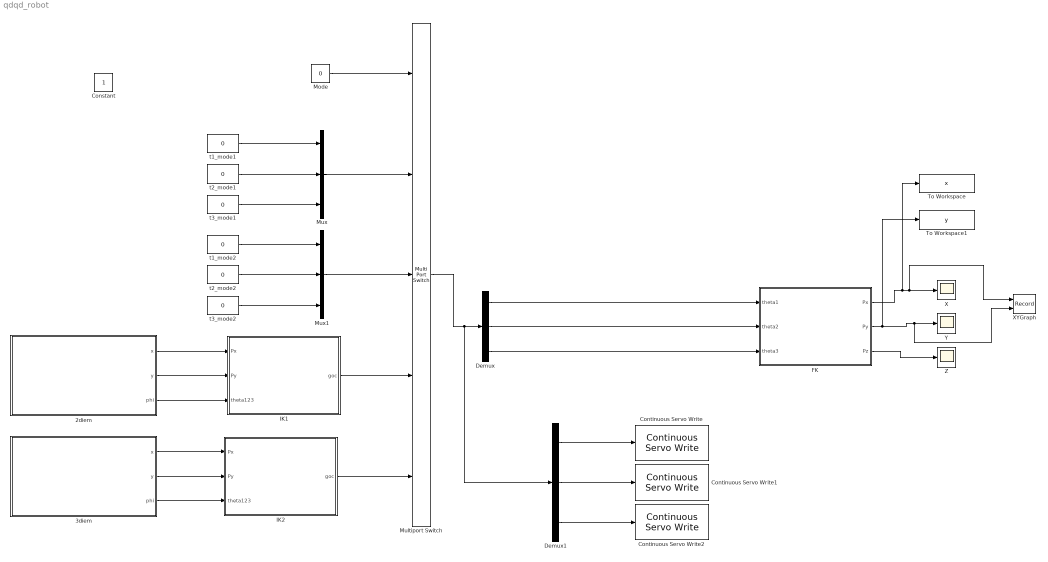
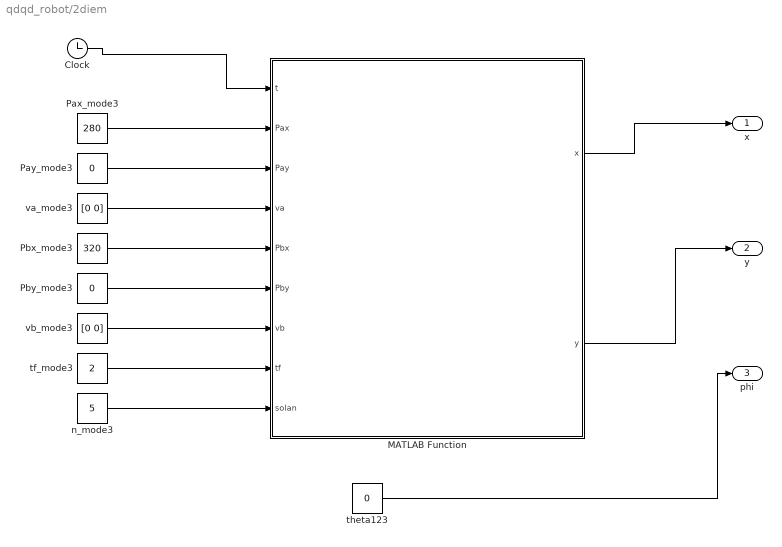
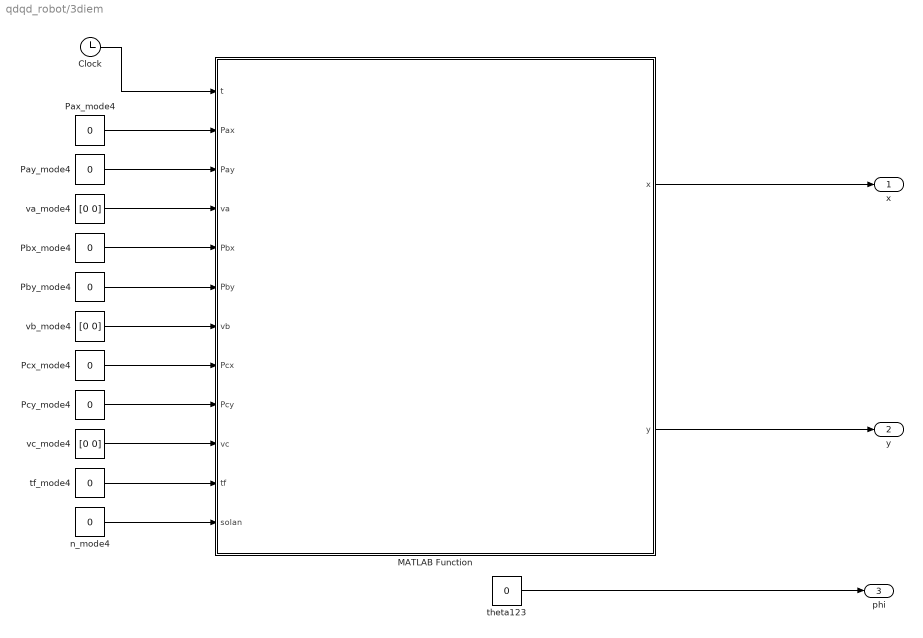
== matlab function qdqd_robot/IK1 ==
function goc  = DHNghich(Px, Py, theta123)
     l0 = 80;
     l1 = 99.98;
     l2 = 95.14;
     l3 = 80;
     d1 = 122.4;
     d2 = 22.4;
     d3 = 18.85;

     % Tinh theta1 
     A = Px - l0 - l3*cosd(theta123);
     B = Py - l3*sind(theta123);
     a = 2*A*l1;
     b = 2*B*l1;
     d = A^2 + B^2 + l1^2 - l2^2;
     anpha = atan2d(a/sqrt(a^2+b^2), b/sqrt(a^2+b^2));
     s1 = d/sqrt(a^2+b^2);
     if(abs(s1 - 1) <= 0.0001)
            if(s1 > 0)
                 s1 = 1;
            else s1 = -1;
            end
     end
     c1 = sqrt(1 - s1^2);
     theta1 = atan2d(s1, c1) - anpha;
     % Tinh theta2
     s2 = (Py - l3*sind(theta123) - l1*sind(theta1)) / l2;
     c2 = (Px - l0 - l1*cosd(theta1) - l3*cosd(theta123))/l2;
     theta2 = atan2d(s2,c2) - theta1;
     % Tinh theta3
    theta3 = theta123 - theta1 - theta2;
    goc = [theta1; theta2; theta3];
end

== matlab function qdqd_robot/2diem/MATLAB Function ==
function [x, y] = QHQD2D(t, Pax, Pay, va, Pbx, Pby, vb, tf, solan)

    function [x, y] = TrajectoryPlanning(t, P0, v0, Pf, vf, tf, t0)
        a10 = P0(1);
        a20 = P0(2);
        a11 = v0(1);
        a21 = v0(2);  
    
        a12 = 3 / tf^2 * (Pf(1) - P0(1)) - 2 / tf * v0(1) - 1 / tf * vf(1);
        a22 = 3 / tf^2 * (Pf(2) - P0(2)) - 2 / tf * v0(2) - 1 / tf * vf(2);
        a13 = -2 / tf^3 * (Pf(1) - P0(1)) + 1 / tf^2 * (vf(1) + v0(1));
        a23 = -2 / tf^3 * (Pf(2) - P0(2)) + 1 / tf^2 * (vf(2) + v0(2));
    
        x = a10 + a11 *(t - t0) + a12 * (t - t0)^2 + a13*(t - t0)^3;
        y = a20 + a21 *(t - t0) + a22 * (t - t0)^2 + a23*(t - t0)^3;
    end

    chuky = tf*2;
    i = fix(t/chuky);
    Pa = [Pax Pay];
    Pb = [Pbx Pby];
    if(t <= (tf + chuky*i))
        [x, y] = TrajectoryPlanning(t, Pa, va, Pb, vb, tf, 0 + chuky * i);
    else
        [x, y] = TrajectoryPlanning(t, Pa, va, Pb, vb, tf, tf + chuky * i);
    end
    if(t > chuky*solan)
         x = Pax;
         y = Pay;
    end
end

== matlab function qdqd_robot/3diem/MATLAB Function ==
function [x, y] = QHQD3D(t, Pax, Pay, va, Pbx, Pby, vb, Pcx, Pcy, vc, tf, solan) 
    function [x, y, z] = TrajectoryPlanning(t, P0, v0, Pf, vf, tf, t0)
        a10 = P0(1);
        a20 = P0(2);
        a11 = v0(1);
        a21 = v0(2);  
    
        a12 = 3 / tf^2 * (Pf(1) - P0(1)) - 2 / tf * v0(1) - 1 / tf * vf(1);
        a22 = 3 / tf^2 * (Pf(2) - P0(2)) - 2 / tf * v0(2) - 1 / tf * vf(2);
        a13 = -2 / tf^3 * (Pf(1) - P0(1)) + 1 / tf^2 * (vf(1) + v0(1));
        a23 = -2 / tf^3 * (Pf(2) - P0(2)) + 1 / tf^2 * (vf(2) + v0(2));
    
        x = a10 + a11 *(t - t0) + a12 * (t - t0)^2 + a13*(t - t0)^3;
        y = a20 + a21 *(t - t0) + a22 * (t - t0)^2 + a23*(t - t0)^3;
        z = 0;
    end
    chuky = tf*3;
    i = fix(t/chuky);
    Pa = [Pax Pay];
    Pb = [Pbx Pby];
    Pc = [Pcx Pcy];
    if(t <= (tf + chuky*i))
        [x, y] = TrajectoryPlanning(t, Pa, va, Pb, vb, tf, tf*0 + chuky * i);
    elseif(t <= (tf*2 + chuky*i))
        [x, y] = TrajectoryPlanning(t, Pb, vb, Pc, vc, tf, tf*1 + chuky * i);
    else
        [x, y] = TrajectoryPlanning(t, Pc, vc, Pa, va, tf, tf*2 + chuky * i);
    end
    if(t > chuky*solan)
         x = Pax;
         y = Pay;
    end
end

== matlab function qdqd_robot/IK2 ==
function goc  = DHNghich(Px, Py, theta123)
    l0 = 80;
     l1 = 99.98;
     l2 = 95.14;
     l3 = 80;
     d1 = 122.4;
     d2 = 22.4;
     d3 = 18.85;

     % Tinh theta1 
     A = Px - l0 - l3*cosd(theta123);
     B = Py - l3*sind(theta123);
     a = 2*A*l1;
     b = 2*B*l1;
     d = A^2 + B^2 + l1^2 - l2^2;
     anpha = atan2d(a/sqrt(a^2+b^2), b/sqrt(a^2+b^2));
     s1 = d/sqrt(a^2+b^2);
     if(abs(s1 - 1) <= 0.0001)
            if(s1 > 0)
                 s1 = 1;
            else s1 = -1;
            end
     end
     c1 = sqrt(1 - s1^2);
     theta1 = atan2d(s1, -c1) - anpha;
     % Tinh theta2
     s2 = (Py - l3*sind(theta123) - l1*sind(theta1)) / l2;
     c2 = (Px - l0 - l1*cosd(theta1) - l3*cosd(theta123))/l2;
     theta2 = atan2d(s2,c2) - theta1;
     % Tinh theta3
    theta3 = theta123 - theta1 - theta2;
    goc = [theta1; theta2; theta3];
end

== matlab function qdqd_robot/FK ==
function [Px, Py, Pz] = DHThuan(theta1, theta2, theta3)
    l1 = 100;
    l2 = 250;
    l3 = 250;
    l4 = 150;
    d1 = 30;
    d2 = 30;
    d3 = 30;
    l0 = 150;

    theta123= 0;

    Px = l1 + l2*cosd(theta1) + l3*cosd(theta1 + theta2) + l4*cosd(theta123);
    Py = l2*sind(theta1) + l3*sind(theta1 + theta2) + l4*sind(theta123);
    Pz = l0 + d1 + d2 + d3;
end

/*
 * File: qdqd_robot.c
 *
 * Code generated for Simulink model 'qdqd_robot'.
 *
 * Model version                  : 1.24
 * Simulink Coder version         : 9.8 (R2022b) 13-May-2022
 * C/C++ source code generated on : Thu Dec 28 00:20:59 2023
 *
 * Target selection: ert.tlc
 * Embedded hardware selection: Atmel->AVR
 * Code generation objectives: Unspecified
 * Validation result: Not run
 */

#include "qdqd_robot.h"
#include "rtwtypes.h"
#include <math.h>
#include "qdqd_robot_private.h"
#include "rt_nonfinite.h"
#include "rt_defines.h"
#include <float.h>

/* Block signals (default storage) */
B_qdqd_robot_T qdqd_robot_B;

/* Block states (default storage) */
DW_qdqd_robot_T qdqd_robot_DW;

/* Real-time model */
static RT_MODEL_qdqd_robot_T qdqd_robot_M_;
RT_MODEL_qdqd_robot_T *const qdqd_robot_M = &qdqd_robot_M_;

/* Forward declaration for local functions */
static void qdqd_robot_TrajectoryPlanning(real_T t, const real_T P0[2], const
  real_T v0[2], const real_T Pf[2], const real_T vf[2], real_T tf, real_T t0,
  real_T *x, real_T *y);
static void qdqd_robot_cosd(real_T *x);
static void qdqd_robot_sind(real_T *x);
real_T rt_powd_snf(real_T u0, real_T u1)
{
  real_T tmp;
  real_T tmp_0;
  real_T y;
  if (rtIsNaN(u0) || rtIsNaN(u1)) {
    y = (rtNaN);
  } else {
    tmp = fabs(u0);
    tmp_0 = fabs(u1);
    if (rtIsInf(u1)) {
      if (tmp == 1.0) {
        y = 1.0;
      } else if (tmp > 1.0) {
        if (u1 > 0.0) {
          y = (rtInf);
        } else {
          y = 0.0;
        }
      } else if (u1 > 0.0) {
        y = 0.0;
      } else {
        y = (rtInf);
      }
    } else if (tmp_0 == 0.0) {
      y = 1.0;
    } else if (tmp_0 == 1.0) {
      if (u1 > 0.0) {
        y = u0;
      } else {
        y = 1.0 / u0;
      }
    } else if (u1 == 2.0) {
      y = u0 * u0;
    } else if ((u1 == 0.5) && (u0 >= 0.0)) {
      y = sqrt(u0);
    } else if ((u0 < 0.0) && (u1 > floor(u1))) {
      y = (rtNaN);
    } else {
      y = pow(u0, u1);
    }
  }

  return y;
}

/* Function for MATLAB Function: '<S1>/MATLAB Function' */
static void qdqd_robot_TrajectoryPlanning(real_T t, const real_T P0[2], const
  real_T v0[2], const real_T Pf[2], const real_T vf[2], real_T tf, real_T t0,
  real_T *x, real_T *y)
{
  real_T x_tmp;
  real_T x_tmp_0;
  real_T x_tmp_1;
  real_T x_tmp_2;
  real_T x_tmp_3;
  qdqd_robot_B.a_tmp = t - t0;
  qdqd_robot_B.x_tmp = rt_powd_snf(qdqd_robot_B.a_tmp, 3.0);
  x_tmp = tf * tf;
  x_tmp_0 = Pf[0] - P0[0];
  x_tmp_1 = 3.0 / x_tmp;
  x_tmp = 1.0 / x_tmp;
  x_tmp_2 = -2.0 / rt_powd_snf(tf, 3.0);
  x_tmp_3 = qdqd_robot_B.a_tmp * qdqd_robot_B.a_tmp;
  *x = (((x_tmp_1 * x_tmp_0 - 2.0 / tf * v0[0]) - 1.0 / tf * vf[0]) * x_tmp_3 +
        (qdqd_robot_B.a_tmp * v0[0] + P0[0])) + ((vf[0] + v0[0]) * x_tmp +
    x_tmp_2 * x_tmp_0) * qdqd_robot_B.x_tmp;
  x_tmp_0 = Pf[1] - P0[1];
  *y = (((x_tmp_1 * x_tmp_0 - 2.0 / tf * v0[1]) - 1.0 / tf * vf[1]) * x_tmp_3 +
        (qdqd_robot_B.a_tmp * v0[1] + P0[1])) + ((vf[1] + v0[1]) * x_tmp +
    x_tmp_2 * x_tmp_0) * qdqd_robot_B.x_tmp;
}

real_T rt_remd_snf(real_T u0, real_T u1)
{
  real_T q;
  real_T y;
  if (rtIsNaN(u0) || rtIsNaN(u1) || rtIsInf(u0)) {
    y = (rtNaN);
  } else if (rtIsInf(u1)) {
    y = u0;
  } else {
    if (u1 < 0.0) {
      q = ceil(u1);
    } else {
      q = floor(u1);
    }

    if ((u1 != 0.0) && (u1 != q)) {
      q = fabs(u0 / u1);
      if (!(fabs(q - floor(q + 0.5)) > DBL_EPSILON * q)) {
        y = 0.0 * u0;
      } else {
        y = fmod(u0, u1);
      }
    } else {
      y = fmod(u0, u1);
    }
  }

  return y;
}

/* Function for MATLAB Function: '<Root>/FK' */
static void qdqd_robot_cosd(real_T *x)
{
  real_T absx;
  real_T b_x;
  int8_T n;
  if (rtIsInf(*x) || rtIsNaN(*x)) {
    *x = (rtNaN);
  } else {
    b_x = rt_remd_snf(*x, 360.0);
    absx = fabs(b_x);
    if (absx > 180.0) {
      if (b_x > 0.0) {
        b_x -= 360.0;
      } else {
        b_x += 360.0;
      }

      absx = fabs(b_x);
    }

    if (absx <= 45.0) {
      b_x *= 0.017453292519943295;
      n = 0;
    } else if (absx <= 135.0) {
      if (b_x > 0.0) {
        b_x = (b_x - 90.0) * 0.017453292519943295;
        n = 1;
      } else {
        b_x = (b_x + 90.0) * 0.017453292519943295;
        n = -1;
      }
    } else if (b_x > 0.0) {
      b_x = (b_x - 180.0) * 0.017453292519943295;
      n = 2;
    } else {
      b_x = (b_x + 180.0) * 0.017453292519943295;
      n = -2;
    }

    switch (n) {
     case 0:
      *x = cos(b_x);
      break;

     case 1:
      *x = -sin(b_x);
      break;

     case -1:
      *x = sin(b_x);
      break;

     default:
      *x = -cos(b_x);
      break;
    }
  }
}

/* Function for MATLAB Function: '<Root>/FK' */
static void qdqd_robot_sind(real_T *x)
{
  real_T absx;
  real_T b_x;
  int8_T n;
  if (rtIsInf(*x) || rtIsNaN(*x)) {
    *x = (rtNaN);
  } else {
    b_x = rt_remd_snf(*x, 360.0);
    absx = fabs(b_x);
    if (absx > 180.0) {
      if (b_x > 0.0) {
        b_x -= 360.0;
      } else {
        b_x += 360.0;
      }

      absx = fabs(b_x);
    }

    if (absx <= 45.0) {
      b_x *= 0.017453292519943295;
      n = 0;
    } else if (absx <= 135.0) {
      if (b_x > 0.0) {
        b_x = (b_x - 90.0) * 0.017453292519943295;
        n = 1;
      } else {
        b_x = (b_x + 90.0) * 0.017453292519943295;
        n = -1;
      }
    } else if (b_x > 0.0) {
      b_x = (b_x - 180.0) * 0.017453292519943295;
      n = 2;
    } else {
      b_x = (b_x + 180.0) * 0.017453292519943295;
      n = -2;
    }

    switch (n) {
     case 0:
      *x = sin(b_x);
      break;

     case 1:
      *x = cos(b_x);
      break;

     case -1:
      *x = -cos(b_x);
      break;

     default:
      *x = -sin(b_x);
      break;
    }
  }
}

real_T rt_atan2d_snf(real_T u0, real_T u1)
{
  real_T y;
  int16_T tmp;
  int16_T tmp_0;
  if (rtIsNaN(u0) || rtIsNaN(u1)) {
    y = (rtNaN);
  } else if (rtIsInf(u0) && rtIsInf(u1)) {
    if (u0 > 0.0) {
      tmp = 1;
    } else {
      tmp = -1;
    }

    if (u1 > 0.0) {
      tmp_0 = 1;
    } else {
      tmp_0 = -1;
    }

    y = atan2(tmp, tmp_0);
  } else if (u1 == 0.0) {
    if (u0 > 0.0) {
      y = RT_PI / 2.0;
    } else if (u0 < 0.0) {
      y = -(RT_PI / 2.0);
    } else {
      y = 0.0;
    }
  } else {
    y = atan2(u0, u1);
  }

  return y;
}

real_T rt_roundd_snf(real_T u)
{
  real_T y;
  if (fabs(u) < 4.503599627370496E+15) {
    if (u >= 0.5) {
      y = floor(u + 0.5);
    } else if (u > -0.5) {
      y = u * 0.0;
    } else {
      y = ceil(u - 0.5);
    }
  } else {
    y = u;
  }

  return y;
}

/* Model step function */
void qdqd_robot_step(void)
{
  uint8_T tmp;

  /* Clock: '<S1>/Clock' incorporates:
   *  Clock: '<S2>/Clock'
   */
  qdqd_robot_B.theta1_m = qdqd_robot_M->Timing.t[0];

  /* MATLAB Function: '<S1>/MATLAB Function' incorporates:
   *  Clock: '<S1>/Clock'
   *  Constant: '<S1>/Pax_mode3'
   *  Constant: '<S1>/Pay_mode3'
   *  Constant: '<S1>/Pbx_mode3'
   *  Constant: '<S1>/Pby_mode3'
   *  Constant: '<S1>/n_mode3'
   *  Constant: '<S1>/tf_mode3'
   *  Constant: '<S1>/va_mode3'
   *  Constant: '<S1>/vb_mode3'
   */
  qdqd_robot_B.chuky = qdqd_robot_P.tf_mode3_Value * 2.0;
  qdqd_robot_B.y_l = qdqd_robot_B.theta1_m / qdqd_robot_B.chuky;
  if (qdqd_robot_B.y_l < 0.0) {
    qdqd_robot_B.i = ceil(qdqd_robot_B.y_l);
  } else {
    qdqd_robot_B.i = floor(qdqd_robot_B.y_l);
  }

  if (qdqd_robot_B.theta1_m <= qdqd_robot_B.chuky * qdqd_robot_B.i +
      qdqd_robot_P.tf_mode3_Value) {
    qdqd_robot_B.dv[0] = qdqd_robot_P.Pax_mode3_Value;
    qdqd_robot_B.dv[1] = qdqd_robot_P.Pay_mode3_Value;
    qdqd_robot_B.Pa[0] = qdqd_robot_P.Pbx_mode3_Value;
    qdqd_robot_B.Pa[1] = qdqd_robot_P.Pby_mode3_Value;
    qdqd_robot_TrajectoryPlanning(qdqd_robot_B.theta1_m, qdqd_robot_B.dv,
      qdqd_robot_P.va_mode3_Value, qdqd_robot_B.Pa, qdqd_robot_P.vb_mode3_Value,
      qdqd_robot_P.tf_mode3_Value, qdqd_robot_B.chuky * qdqd_robot_B.i,
      &qdqd_robot_B.x_e, &qdqd_robot_B.y_l);
  } else {
    qdqd_robot_B.dv[0] = qdqd_robot_P.Pax_mode3_Value;
    qdqd_robot_B.dv[1] = qdqd_robot_P.Pay_mode3_Value;
    qdqd_robot_B.Pa[0] = qdqd_robot_P.Pbx_mode3_Value;
    qdqd_robot_B.Pa[1] = qdqd_robot_P.Pby_mode3_Value;
    qdqd_robot_TrajectoryPlanning(qdqd_robot_B.theta1_m, qdqd_robot_B.dv,
      qdqd_robot_P.va_mode3_Value, qdqd_robot_B.Pa, qdqd_robot_P.vb_mode3_Value,
      qdqd_robot_P.tf_mode3_Value, qdqd_robot_P.tf_mode3_Value +
      qdqd_robot_B.chuky * qdqd_robot_B.i, &qdqd_robot_B.x_e, &qdqd_robot_B.y_l);
  }

  if (qdqd_robot_B.theta1_m > qdqd_robot_B.chuky * qdqd_robot_P.n_mode3_Value) {
    qdqd_robot_B.x_e = qdqd_robot_P.Pax_mode3_Value;
    qdqd_robot_B.y_l = qdqd_robot_P.Pay_mode3_Value;
  }

  /* End of MATLAB Function: '<S1>/MATLAB Function' */

  /* MATLAB Function: '<Root>/IK1' incorporates:
   *  Constant: '<S1>/theta123'
   */
  qdqd_robot_B.i = qdqd_robot_P.theta123_Value;
  qdqd_robot_cosd(&qdqd_robot_B.i);
  qdqd_robot_B.i = (qdqd_robot_B.x_e - 80.0) - 80.0 * qdqd_robot_B.i;
  qdqd_robot_B.a = qdqd_robot_P.theta123_Value;
  qdqd_robot_sind(&qdqd_robot_B.a);
  qdqd_robot_B.B = qdqd_robot_B.y_l - 80.0 * qdqd_robot_B.a;
  qdqd_robot_B.a = 2.0 * qdqd_robot_B.i * 99.98;
  qdqd_robot_B.chuky = 2.0 * qdqd_robot_B.B * 99.98;
  qdqd_robot_B.s1_tmp = sqrt(qdqd_robot_B.a * qdqd_robot_B.a +
    qdqd_robot_B.chuky * qdqd_robot_B.chuky);
  qdqd_robot_B.i = (((qdqd_robot_B.i * qdqd_robot_B.i + qdqd_robot_B.B *
                      qdqd_robot_B.B) + 9996.0004) - 9051.6196) /
    qdqd_robot_B.s1_tmp;
  if (fabs(qdqd_robot_B.i - 1.0) <= 0.0001) {
    if (qdqd_robot_B.i > 0.0) {
      qdqd_robot_B.i = 1.0;
    } else {
      qdqd_robot_B.i = -1.0;
    }
  }

  qdqd_robot_B.theta1 = rt_atan2d_snf(qdqd_robot_B.i, sqrt(1.0 - qdqd_robot_B.i *
    qdqd_robot_B.i)) * 57.295779513082323 - rt_atan2d_snf(qdqd_robot_B.a /
    qdqd_robot_B.s1_tmp, qdqd_robot_B.chuky / qdqd_robot_B.s1_tmp) *
    57.295779513082323;
  qdqd_robot_B.i = qdqd_robot_P.theta123_Value;
  qdqd_robot_sind(&qdqd_robot_B.i);
  qdqd_robot_B.a = qdqd_robot_B.theta1;
  qdqd_robot_sind(&qdqd_robot_B.a);
  qdqd_robot_B.chuky = qdqd_robot_B.theta1;
  qdqd_robot_cosd(&qdqd_robot_B.chuky);
  qdqd_robot_B.s1_tmp = qdqd_robot_P.theta123_Value;
  qdqd_robot_cosd(&qdqd_robot_B.s1_tmp);
  qdqd_robot_B.x_e = rt_atan2d_snf(((qdqd_robot_B.y_l - 80.0 * qdqd_robot_B.i) -
    99.98 * qdqd_robot_B.a) / 95.14, (((qdqd_robot_B.x_e - 80.0) - 99.98 *
    qdqd_robot_B.chuky) - 80.0 * qdqd_robot_B.s1_tmp) / 95.14) *
    57.295779513082323 - qdqd_robot_B.theta1;

  /* MATLAB Function: '<S2>/MATLAB Function' incorporates:
   *  Constant: '<S2>/Pax_mode4'
   *  Constant: '<S2>/Pay_mode4'
   *  Constant: '<S2>/Pbx_mode4'
   *  Constant: '<S2>/Pby_mode4'
   *  Constant: '<S2>/Pcx_mode4'
   *  Constant: '<S2>/Pcy_mode4'
   *  Constant: '<S2>/n_mode4'
   *  Constant: '<S2>/tf_mode4'
   *  Constant: '<S2>/va_mode4'
   *  Constant: '<S2>/vb_mode4'
   *  Constant: '<S2>/vc_mode4'
   */
  qdqd_robot_B.chuky = qdqd_robot_P.tf_mode4_Value * 3.0;
  qdqd_robot_B.y_l = qdqd_robot_B.theta1_m / qdqd_robot_B.chuky;
  if (qdqd_robot_B.y_l < 0.0) {
    qdqd_robot_B.i = ceil(qdqd_robot_B.y_l);
  } else {
    qdqd_robot_B.i = floor(qdqd_robot_B.y_l);
  }

  qdqd_robot_B.Pa[0] = qdqd_robot_P.Pax_mode4_Value;
  qdqd_robot_B.Pa[1] = qdqd_robot_P.Pay_mode4_Value;
  qdqd_robot_B.Pb[0] = qdqd_robot_P.Pbx_mode4_Value;
  qdqd_robot_B.Pb[1] = qdqd_robot_P.Pby_mode4_Value;
  qdqd_robot_B.y_l = qdqd_robot_B.chuky * qdqd_robot_B.i;
  if (qdqd_robot_B.theta1_m <= qdqd_robot_B.y_l + qdqd_robot_P.tf_mode4_Value) {
    qdqd_robot_TrajectoryPlanning(qdqd_robot_B.theta1_m, qdqd_robot_B.Pa,
      qdqd_robot_P.va_mode4_Value, qdqd_robot_B.Pb, qdqd_robot_P.vb_mode4_Value,
      qdqd_robot_P.tf_mode4_Value, qdqd_robot_P.tf_mode4_Value * 0.0 +
      qdqd_robot_B.chuky * qdqd_robot_B.i, &qdqd_robot_B.y_l, &qdqd_robot_B.y);
  } else if (qdqd_robot_B.theta1_m <= qdqd_robot_P.tf_mode4_Value * 2.0 +
             qdqd_robot_B.y_l) {
    qdqd_robot_B.dv[0] = qdqd_robot_P.Pcx_mode4_Value;
    qdqd_robot_B.dv[1] = qdqd_robot_P.Pcy_mode4_Value;
    qdqd_robot_TrajectoryPlanning(qdqd_robot_B.theta1_m, qdqd_robot_B.Pb,
      qdqd_robot_P.vb_mode4_Value, qdqd_robot_B.dv, qdqd_robot_P.vc_mode4_Value,
      qdqd_robot_P.tf_mode4_Value, qdqd_robot_P.tf_mode4_Value +
      qdqd_robot_B.chuky * qdqd_robot_B.i, &qdqd_robot_B.y_l, &qdqd_robot_B.y);
  } else {
    qdqd_robot_B.dv[0] = qdqd_robot_P.Pcx_mode4_Value;
    qdqd_robot_B.dv[1] = qdqd_robot_P.Pcy_mode4_Value;
    qdqd_robot_TrajectoryPlanning(qdqd_robot_B.theta1_m, qdqd_robot_B.dv,
      qdqd_robot_P.vc_mode4_Value, qdqd_robot_B.Pa, qdqd_robot_P.va_mode4_Value,
      qdqd_robot_P.tf_mode4_Value, qdqd_robot_P.tf_mode4_Value * 2.0 +
      qdqd_robot_B.chuky * qdqd_robot_B.i, &qdqd_robot_B.y_l, &qdqd_robot_B.y);
  }

  if (qdqd_robot_B.theta1_m > qdqd_robot_B.chuky * qdqd_robot_P.n_mode4_Value) {
    qdqd_robot_B.y_l = qdqd_robot_P.Pax_mode4_Value;
    qdqd_robot_B.y = qdqd_robot_P.Pay_mode4_Value;
  }

  /* End of MATLAB Function: '<S2>/MATLAB Function' */

  /* MATLAB Function: '<Root>/IK2' incorporates:
   *  Constant: '<S2>/theta123'
   */
  qdqd_robot_B.i = qdqd_robot_P.theta123_Value_j;
  qdqd_robot_cosd(&qdqd_robot_B.i);
  qdqd_robot_B.i = (qdqd_robot_B.y_l - 80.0) - 80.0 * qdqd_robot_B.i;
  qdqd_robot_B.a = qdqd_robot_P.theta123_Value_j;
  qdqd_robot_sind(&qdqd_robot_B.a);
  qdqd_robot_B.B = qdqd_robot_B.y - 80.0 * qdqd_robot_B.a;
  qdqd_robot_B.a = 2.0 * qdqd_robot_B.i * 99.98;
  qdqd_robot_B.chuky = 2.0 * qdqd_robot_B.B * 99.98;
  qdqd_robot_B.s1_tmp = sqrt(qdqd_robot_B.a * qdqd_robot_B.a +
    qdqd_robot_B.chuky * qdqd_robot_B.chuky);
  qdqd_robot_B.i = (((qdqd_robot_B.i * qdqd_robot_B.i + qdqd_robot_B.B *
                      qdqd_robot_B.B) + 9996.0004) - 9051.6196) /
    qdqd_robot_B.s1_tmp;
  if (fabs(qdqd_robot_B.i - 1.0) <= 0.0001) {
    if (qdqd_robot_B.i > 0.0) {
      qdqd_robot_B.i = 1.0;
    } else {
      qdqd_robot_B.i = -1.0;
    }
  }

  qdqd_robot_B.theta1_m = rt_atan2d_snf(qdqd_robot_B.i, -sqrt(1.0 -
    qdqd_robot_B.i * qdqd_robot_B.i)) * 57.295779513082323 - rt_atan2d_snf
    (qdqd_robot_B.a / qdqd_robot_B.s1_tmp, qdqd_robot_B.chuky /
     qdqd_robot_B.s1_tmp) * 57.295779513082323;
  qdqd_robot_B.i = qdqd_robot_P.theta123_Value_j;
  qdqd_robot_sind(&qdqd_robot_B.i);
  qdqd_robot_B.a = qdqd_robot_B.theta1_m;
  qdqd_robot_sind(&qdqd_robot_B.a);
  qdqd_robot_B.chuky = qdqd_robot_B.theta1_m;
  qdqd_robot_cosd(&qdqd_robot_B.chuky);
  qdqd_robot_B.s1_tmp = qdqd_robot_P.theta123_Value_j;
  qdqd_robot_cosd(&qdqd_robot_B.s1_tmp);
  qdqd_robot_B.y = rt_atan2d_snf(((qdqd_robot_B.y - 80.0 * qdqd_robot_B.i) -
    99.98 * qdqd_robot_B.a) / 95.14, (((qdqd_robot_B.y_l - 80.0) - 99.98 *
    qdqd_robot_B.chuky) - 80.0 * qdqd_robot_B.s1_tmp) / 95.14) *
    57.295779513082323 - qdqd_robot_B.theta1_m;

  /* MultiPortSwitch: '<Root>/Multiport Switch' incorporates:
   *  Constant: '<Root>/Mode'
   *  Constant: '<Root>/t1_mode1'
   *  Constant: '<Root>/t1_mode2'
   *  Constant: '<Root>/t2_mode1'
   *  Constant: '<Root>/t2_mode2'
   *  Constant: '<Root>/t3_mode1'
   *  Constant: '<Root>/t3_mode2'
   *  Constant: '<S1>/theta123'
   *  Constant: '<S2>/theta123'
   *  MATLAB Function: '<Root>/IK1'
   *  MATLAB Function: '<Root>/IK2'
   */
  switch ((int16_T)qdqd_robot_P.Mode_Value) {
   case 1:
    qdqd_robot_B.theta1_m = qdqd_robot_P.t1_mode1_Value;
    qdqd_robot_B.y = qdqd_robot_P.t2_mode1_Value;
    qdqd_robot_B.theta1 = qdqd_robot_P.t3_mode1_Value;
    break;

   case 2:
    qdqd_robot_B.theta1_m = qdqd_robot_P.t1_mode2_Value;
    qdqd_robot_B.y = qdqd_robot_P.t2_mode2_Value;
    qdqd_robot_B.theta1 = qdqd_robot_P.t3_mode2_Value;
    break;

   case 3:
    qdqd_robot_B.theta1_m = qdqd_robot_B.theta1;
    qdqd_robot_B.y = qdqd_robot_B.x_e;
    qdqd_robot_B.theta1 = (qdqd_robot_P.theta123_Value - qdqd_robot_B.theta1) -
      qdqd_robot_B.x_e;
    break;

   default:
    qdqd_robot_B.theta1 = (qdqd_robot_P.theta123_Value_j - qdqd_robot_B.theta1_m)
      - qdqd_robot_B.y;
    break;
  }

  /* End of MultiPortSwitch: '<Root>/Multiport Switch' */

  /* MATLABSystem: '<Root>/Continuous Servo Write' */
  if (qdqd_robot_B.theta1_m + 90.0 < 0.0) {
    tmp = 0U;
  } else if (qdqd_robot_B.theta1_m + 90.0 > 180.0) {
    tmp = 180U;
  } else {
    qdqd_robot_B.y_l = rt_roundd_snf(qdqd_robot_B.theta1_m + 90.0);
    if (qdqd_robot_B.y_l < 256.0) {
      if (qdqd_robot_B.y_l >= 0.0) {
        tmp = (uint8_T)qdqd_robot_B.y_l;
      } else {
        tmp = 0U;
      }
    } else {
      tmp = MAX_uint8_T;
    }
  }

  MW_servoWrite(0, tmp);

  /* End of MATLABSystem: '<Root>/Continuous Servo Write' */

  /* MATLABSystem: '<Root>/Continuous Servo Write1' */
  if (qdqd_robot_B.y + 90.0 < 0.0) {
    tmp = 0U;
  } else if (qdqd_robot_B.y + 90.0 > 180.0) {
    tmp = 180U;
  } else {
    qdqd_robot_B.y_l = rt_roundd_snf(qdqd_robot_B.y + 90.0);
    if (qdqd_robot_B.y_l < 256.0) {
      if (qdqd_robot_B.y_l >= 0.0) {
        tmp = (uint8_T)qdqd_robot_B.y_l;
      } else {
        tmp = 0U;
      }
    } else {
      tmp = MAX_uint8_T;
    }
  }

  MW_servoWrite(1, tmp);

  /* End of MATLABSystem: '<Root>/Continuous Servo Write1' */

  /* MATLABSystem: '<Root>/Continuous Servo Write2' */
  if (qdqd_robot_B.theta1 + 90.0 < 0.0) {
    tmp = 0U;
  } else if (qdqd_robot_B.theta1 + 90.0 > 180.0) {
    tmp = 180U;
  } else {
    qdqd_robot_B.y_l = rt_roundd_snf(qdqd_robot_B.theta1 + 90.0);
    if (qdqd_robot_B.y_l < 256.0) {
      if (qdqd_robot_B.y_l >= 0.0) {
        tmp = (uint8_T)qdqd_robot_B.y_l;
      } else {
        tmp = 0U;
      }
    } else {
      tmp = MAX_uint8_T;
    }
  }

  MW_servoWrite(2, tmp);

  /* End of MATLABSystem: '<Root>/Continuous Servo Write2' */

  /* MATLAB Function: '<Root>/FK' */
  qdqd_robot_B.chuky = qdqd_robot_B.theta1_m;
  qdqd_robot_cosd(&qdqd_robot_B.chuky);
  qdqd_robot_B.theta1 = qdqd_robot_B.theta1_m + qdqd_robot_B.y;
  qdqd_robot_B.i = qdqd_robot_B.theta1;
  qdqd_robot_cosd(&qdqd_robot_B.i);
  qdqd_robot_B.a = 0.0;
  qdqd_robot_cosd(&qdqd_robot_B.a);
  qdqd_robot_B.Px = ((250.0 * qdqd_robot_B.chuky + 100.0) + 250.0 *
                     qdqd_robot_B.i) + 150.0 * qdqd_robot_B.a;
  qdqd_robot_sind(&qdqd_robot_B.theta1_m);
  qdqd_robot_sind(&qdqd_robot_B.theta1);
  qdqd_robot_B.chuky = 0.0;
  qdqd_robot_sind(&qdqd_robot_B.chuky);
  qdqd_robot_B.Py = (250.0 * qdqd_robot_B.theta1_m + 250.0 * qdqd_robot_B.theta1)
    + 150.0 * qdqd_robot_B.chuky;
  qdqd_robot_B.Pz = 240.0;

  {                                    /* Sample time: [0.0s, 0.0s] */
    extmodeErrorCode_T errorCode = EXTMODE_SUCCESS;
    extmodeSimulationTime_T currentTime = (extmodeSimulationTime_T)
      ((qdqd_robot_M->Timing.clockTick0 * 1) + 0)
      ;

    /* Trigger External Mode event */
    errorCode = extmodeEvent(0,currentTime);
    if (errorCode != EXTMODE_SUCCESS) {
      /* Code to handle External Mode event errors
         may be added here */
    }
  }

  {                                    /* Sample time: [0.01s, 0.0s] */
    extmodeErrorCode_T errorCode = EXTMODE_SUCCESS;
    extmodeSimulationTime_T currentTime = (extmodeSimulationTime_T)
      ((qdqd_robot_M->Timing.clockTick1 * 1) + 0)
      ;

    /* Trigger External Mode event */
    errorCode = extmodeEvent(1,currentTime);
    if (errorCode != EXTMODE_SUCCESS) {
      /* Code to handle External Mode event errors
         may be added here */
    }
  }

  /* Update absolute time for base rate */
  /* The "clockTick0" counts the number of times the code of this task has
   * been executed. The absolute time is the multiplication of "clockTick0"
   * and "Timing.stepSize0". Size of "clockTick0" ensures timer will not
   * overflow during the application lifespan selected.
   */
  qdqd_robot_M->Timing.t[0] =
    ((time_T)(++qdqd_robot_M->Timing.clockTick0)) *
    qdqd_robot_M->Timing.stepSize0;

  {
    /* Update absolute timer for sample time: [0.01s, 0.0s] */
    /* The "clockTick1" counts the number of times the code of this task has
     * been executed. The resolution of this integer timer is 0.01, which is the step size
     * of the task. Size of "clockTick1" ensures timer will not overflow during the
     * application lifespan selected.
     */
    qdqd_robot_M->Timing.clockTick1++;
  }
}
